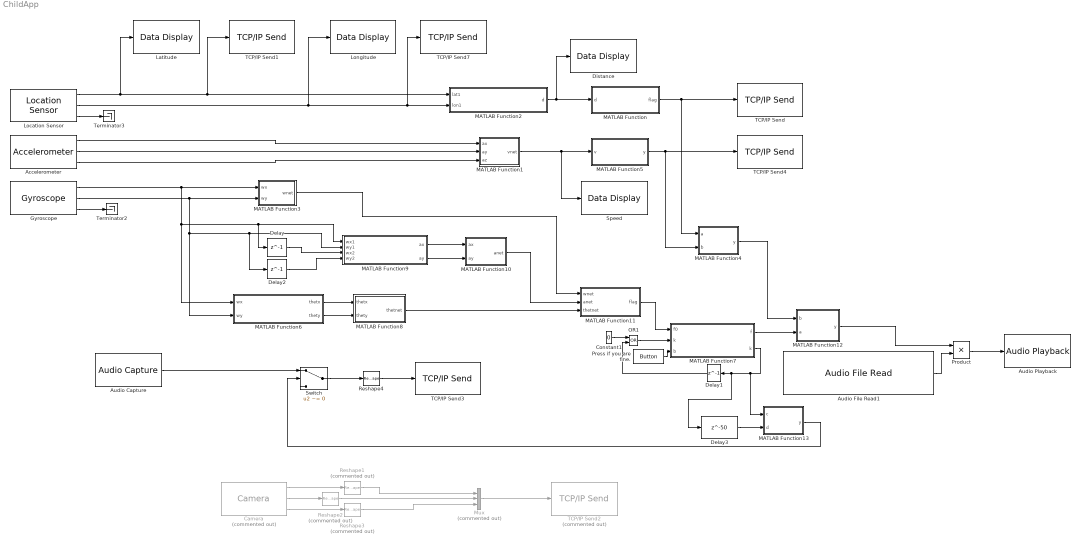
== matlab function ChildApp/MATLAB Function8 ==
function thetnet = mag(thetx,thety)
    thetnet = sqrt(thetx^2+thety^2);
end

== matlab function ChildApp/MATLAB Function9 ==
function [ax,ay] = integrateAcceleration(wx1,wy1,wx2,wy2)
    dt=0.2;
    ax=(wx2-wx1)/dt;
    ay=(wy2-wy1)/dt;
end

== matlab function ChildApp/MATLAB Function12 ==
function y = OR(b,a)
    if(b == 1 || a == 1)
        y = int16(1);
    else
        y = int16(0);
    end
end

== matlab function ChildApp/MATLAB Function13 ==
function y = fcn(c,d)
    if(c == 1)
        if(d == 1)
            y = int16(1);
        else
            y = int16(0);
        end
    else
        y = int16(0);
    end
end

== matlab function ChildApp/MATLAB Function1 ==
function vnet = speed(ax,ay,az)
    dt = 0.2;
    vx = double(ax)*dt;
    vy = double(ay)*dt;
    vz = double(az-9.81)*dt;
    vnet = sqrt(vx^2+vy^2+vz^2);
    if( vnet<= 0.2)
        vnet = 0;
    end
end

== matlab function ChildApp/MATLAB Function2 ==
function d = DistanceFromLatLonInKm(lat1,lon1)
    R = 6371;
    lat2 = 23.2096737;
    lon2 = 72.6836191;
    % Haversine formula
    dlat = deg2rad(lat2-lat1);
    dlon = deg2rad(lon2-lon1); 
    a = sin(dlat/2)^2 + cos(lat1)* cos(lat2) * sin(dlon/2)^2;
    c = 2 * asin(sqrt(complex(a)));  
    d = R * c; % in km
end

== matlab function ChildApp/MATLAB Function ==
function flag = is_out_of_boundary(d)
    if(d > 0.1)
        flag = int16(1);
    else 
        flag = int16(0);
    end
end

== matlab function ChildApp/MATLAB Function10 ==
function anet = mag(ax,ay)
    anet = sqrt(ax^2+ay^2);
end

== matlab function ChildApp/MATLAB Function4 ==
function y = OR(a,b)
    if(a == 1 || b == 1)
        y = int16(1);
    else 
        y = int16(0);
    end
end

== matlab function ChildApp/MATLAB Function5 ==
function y = is_overspeeding(v)
    if(v>5)
        y = int16(1);
    else
        y = int16(0);
    end

end

== matlab function ChildApp/MATLAB Function11 ==
function flag = check(wnet,anet,thetnet)
    flag=int16(0);
    if(wnet > 5)
        if(anet > 30 && thetnet > 0.8)
            flag=int16(1);          
        end
    end
end

== matlab function ChildApp/MATLAB Function3 ==
function wnet = mag(wx,wy)
    wnet = sqrt(wx^2+wy^2);
end

== matlab function ChildApp/MATLAB Function6 ==
function [thetx,thety] = integrateAcceleration(wx,wy)
    dt=0.2;
    thetx =double(wx) * dt;
    thety =double(wy) * dt;
end

== matlab function ChildApp/MATLAB Function7 ==
function [f,k]= check_if_injured_or_not(f0,k,b)
    if(b == false)
        if(k == false)
            if(f0 == 1)
                k = true;
                f = int16(1);
                return;
            end
            f = int16(0);
        elseif(k == true)
            f = int16(1);
        else
            f = int16(0);
        end
    else
        f = int16(0);
        k = false;
    end
end

/*
 * Academic License - for use in teaching, academic research, and meeting
 * course requirements at degree granting institutions only.  Not for
 * government, commercial, or other organizational use.
 *
 * File: ChildApp.c
 *
 * Code generated for Simulink model 'ChildApp'.
 *
 * Model version                  : 1.3
 * Simulink Coder version         : 9.9 (R2023a) 19-Nov-2022
 * C/C++ source code generated on : Sat Sep 30 21:11:03 2023
 *
 * Target selection: ert.tlc
 * Embedded hardware selection: ARM Compatible->ARM 64-bit (LP64)
 * Code generation objectives: Unspecified
 * Validation result: Not run
 */

#include "ChildApp.h"
#include "rtwtypes.h"
#include "ChildApp_types.h"
#include <string.h>
#include <math.h>
#include "rt_nonfinite.h"
#include "ChildApp_private.h"
#include <stddef.h>
#include "rt_defines.h"

/* Block signals (default storage) */
B_ChildApp_T ChildApp_B;

/* Block states (default storage) */
DW_ChildApp_T ChildApp_DW;

/* Real-time model */
static RT_MODEL_ChildApp_T ChildApp_M_;
RT_MODEL_ChildApp_T *const ChildApp_M = &ChildApp_M_;

/* Forward declaration for local functions */
static real_T ChildApp_rt_hypotd_snf(real_T u0, real_T u1);
static void ChildApp_sqrt(creal_T *x);
static real_T ChildApp_rescale(real_T *re, real_T *im);
static void ChildApp_SystemCore_setup_ej(codertarget_internal_androidT_T *obj);
static void ChildApp_SystemCore_setup_ejw(codertarget_internal_androidT_T *obj);
static void ChildApp_SystemCore_setup(codertarget_internal_androidT_T *obj);
static void ChildApp_SystemCore_setup_e(codertarget_internal_androidT_T *obj);
static void ChildApp_SystemCore_setup_ejw1(codertarget_internal_androidT_T *obj);
static void rate_scheduler(void);

/*
 *         This function updates active task flag for each subrate.
 *         The function is called at model base rate, hence the
 *         generated code self-manages all its subrates.
 */
static void rate_scheduler(void)
{
  /* Compute which subrates run during the next base time step.  Subrates
   * are an integer multiple of the base rate counter.  Therefore, the subtask
   * counter is reset when it reaches its limit (zero means run).
   */
  (ChildApp_M->Timing.TaskCounters.TID[1])++;
  if ((ChildApp_M->Timing.TaskCounters.TID[1]) > 1) {/* Sample time: [0.2s, 0.0s] */
    ChildApp_M->Timing.TaskCounters.TID[1] = 0;
  }
}

static real_T ChildApp_rt_hypotd_snf(real_T u0, real_T u1)
{
  real_T y;
  ChildApp_B.a = fabs(u0);
  ChildApp_B.b_c = fabs(u1);
  if (ChildApp_B.a < ChildApp_B.b_c) {
    ChildApp_B.a /= ChildApp_B.b_c;
    y = sqrt(ChildApp_B.a * ChildApp_B.a + 1.0) * ChildApp_B.b_c;
  } else if (ChildApp_B.a > ChildApp_B.b_c) {
    ChildApp_B.b_c /= ChildApp_B.a;
    y = sqrt(ChildApp_B.b_c * ChildApp_B.b_c + 1.0) * ChildApp_B.a;
  } else if (rtIsNaN(ChildApp_B.b_c)) {
    y = (rtNaN);
  } else {
    y = ChildApp_B.a * 1.4142135623730951;
  }

  return y;
}

/* Function for MATLAB Function: '<Root>/MATLAB Function2' */
static void ChildApp_sqrt(creal_T *x)
{
  if (x->im == 0.0) {
    if (x->re < 0.0) {
      ChildApp_B.absxr = 0.0;
      ChildApp_B.absxi = sqrt(-x->re);
    } else {
      ChildApp_B.absxr = sqrt(x->re);
      ChildApp_B.absxi = 0.0;
    }
  } else if (x->re == 0.0) {
    if (x->im < 0.0) {
      ChildApp_B.absxr = sqrt(-x->im / 2.0);
      ChildApp_B.absxi = -ChildApp_B.absxr;
    } else {
      ChildApp_B.absxr = sqrt(x->im / 2.0);
      ChildApp_B.absxi = ChildApp_B.absxr;
    }
  } else if (rtIsNaN(x->re)) {
    ChildApp_B.absxr = (rtNaN);
    ChildApp_B.absxi = (rtNaN);
  } else if (rtIsNaN(x->im)) {
    ChildApp_B.absxr = (rtNaN);
    ChildApp_B.absxi = (rtNaN);
  } else if (rtIsInf(x->im)) {
    ChildApp_B.absxr = fabs(x->im);
    ChildApp_B.absxi = x->im;
  } else if (rtIsInf(x->re)) {
    if (x->re < 0.0) {
      ChildApp_B.absxr = 0.0;
      ChildApp_B.absxi = x->im * -x->re;
    } else {
      ChildApp_B.absxr = x->re;
      ChildApp_B.absxi = 0.0;
    }
  } else {
    ChildApp_B.absxr = fabs(x->re);
    ChildApp_B.absxi = fabs(x->im);
    if ((ChildApp_B.absxr > 4.4942328371557893E+307) || (ChildApp_B.absxi >
         4.4942328371557893E+307)) {
      ChildApp_B.absxr *= 0.5;
      ChildApp_B.absxi = ChildApp_rt_hypotd_snf(ChildApp_B.absxr,
        ChildApp_B.absxi * 0.5);
      if (ChildApp_B.absxi > ChildApp_B.absxr) {
        ChildApp_B.absxr = sqrt(ChildApp_B.absxr / ChildApp_B.absxi + 1.0) *
          sqrt(ChildApp_B.absxi);
      } else {
        ChildApp_B.absxr = sqrt(ChildApp_B.absxi) * 1.4142135623730951;
      }
    } else {
      ChildApp_B.absxr = sqrt((ChildApp_rt_hypotd_snf(ChildApp_B.absxr,
        ChildApp_B.absxi) + ChildApp_B.absxr) * 0.5);
    }

    if (x->re > 0.0) {
      ChildApp_B.absxi = x->im / ChildApp_B.absxr * 0.5;
    } else {
      if (x->im < 0.0) {
        ChildApp_B.absxi = -ChildApp_B.absxr;
      } else {
        ChildApp_B.absxi = ChildApp_B.absxr;
      }

      ChildApp_B.absxr = x->im / ChildApp_B.absxi * 0.5;
    }
  }

  x->re = ChildApp_B.absxr;
  x->im = ChildApp_B.absxi;
}

/* Function for MATLAB Function: '<Root>/MATLAB Function2' */
static real_T ChildApp_rescale(real_T *re, real_T *im)
{
  real_T absim;
  real_T scale;
  scale = fabs(*re);
  absim = fabs(*im);
  if (scale > absim) {
    if (*re < 0.0) {
      *re = -1.0;
    } else {
      *re = 1.0;
    }

    *im /= scale;
  } else if (absim > scale) {
    *re /= absim;
    if (*im < 0.0) {
      *im = -1.0;
    } else {
      *im = 1.0;
    }

    scale = absim;
  } else {
    if (*re < 0.0) {
      *re = -1.0;
    } else {
      *re = 1.0;
    }

    if (*im < 0.0) {
      *im = -1.0;
    } else {
      *im = 1.0;
    }
  }

  return scale;
}

real_T rt_atan2d_snf(real_T u0, real_T u1)
{
  real_T y;
  int32_T tmp;
  int32_T tmp_0;
  if (rtIsNaN(u0) || rtIsNaN(u1)) {
    y = (rtNaN);
  } else if (rtIsInf(u0) && rtIsInf(u1)) {
    if (u0 > 0.0) {
      tmp = 1;
    } else {
      tmp = -1;
    }

    if (u1 > 0.0) {
      tmp_0 = 1;
    } else {
      tmp_0 = -1;
    }

    y = atan2(tmp, tmp_0);
  } else if (u1 == 0.0) {
    if (u0 > 0.0) {
      y = RT_PI / 2.0;
    } else if (u0 < 0.0) {
      y = -(RT_PI / 2.0);
    } else {
      y = 0.0;
    }
  } else {
    y = atan2(u0, u1);
  }

  return y;
}

real_T rt_roundd_snf(real_T u)
{
  real_T y;
  if (fabs(u) < 4.503599627370496E+15) {
    if (u >= 0.5) {
      y = floor(u + 0.5);
    } else if (u > -0.5) {
      y = u * 0.0;
    } else {
      y = ceil(u - 0.5);
    }
  } else {
    y = u;
  }

  return y;
}

static void ChildApp_SystemCore_setup_ej(codertarget_internal_androidT_T *obj)
{
  real_T tmp;
  int32_T i;
  int16_T errorNo;
  uint16_T tmp_0;
  char_T b_str_data[7];
  char_T ipaddr[7];
  static const char_T tmp_1[7] = "Server";
  int32_T str_size_idx_1;
  obj->isInitialized = 1;
  errorNo = obj->errorNo_;
  obj->isServer_ = 1.0;
  for (i = 0; i < 7; i++) {
    ipaddr[i] = tmp_1[i];
  }

  tmp = rt_roundd_snf(obj->isServer_);
  if (tmp < 65536.0) {
    if (tmp >= 0.0) {
      tmp_0 = (uint16_T)tmp;
    } else {
      tmp_0 = 0U;
    }
  } else {
    tmp_0 = MAX_uint16_T;
  }

  TCPStreamSetup(20000, 0, &obj->connStream_, tmp_0, 0.0, &obj->errorNo_,
                 &ipaddr[0]);
  littleEndianCheck(&obj->isLittleEnd_);
  if ((errorNo != obj->errorNo_) && (obj->errorNo_ > 0) && (obj->errorNo_ < 10))
  {
    str_size_idx_1 = 1;
    ipaddr[0] = '\x00';
    if (obj->errorNo_ == 4) {
      UPDATE_TCP_LOGI(obj->errorNo_, 3.0, 0, 25000);
    } else {
      if (obj->errorNo_ == 5) {
        str_size_idx_1 = 7;
        for (i = 0; i < 7; i++) {
          ipaddr[i] = tmp_1[i];
        }
      }

      memcpy(&b_str_data[0], &ipaddr[0], (uint32_T)str_size_idx_1 * sizeof
             (char_T));
      UPDATE_TCP_LOGS(obj->errorNo_, 3.0, 0, &b_str_data[0]);
    }
  }
}

static void ChildApp_SystemCore_setup_ejw(codertarget_internal_androidT_T *obj)
{
  real_T tmp;
  int32_T i;
  int16_T errorNo;
  uint16_T tmp_0;
  char_T b_str_data[7];
  char_T ipaddr[7];
  static const char_T tmp_1[7] = "Server";
  int32_T str_size_idx_1;
  obj->isInitialized = 1;
  errorNo = obj->errorNo_;
  obj->isServer_ = 1.0;
  for (i = 0; i < 7; i++) {
    ipaddr[i] = tmp_1[i];
  }

  tmp = rt_roundd_snf(obj->isServer_);
  if (tmp < 65536.0) {
    if (tmp >= 0.0) {
      tmp_0 = (uint16_T)tmp;
    } else {
      tmp_0 = 0U;
    }
  } else {
    tmp_0 = MAX_uint16_T;
  }

  TCPStreamSetup(60000, 0, &obj->connStream_, tmp_0, 0.0, &obj->errorNo_,
                 &ipaddr[0]);
  littleEndianCheck(&obj->isLittleEnd_);
  if ((errorNo != obj->errorNo_) && (obj->errorNo_ > 0) && (obj->errorNo_ < 10))
  {
    str_size_idx_1 = 1;
    ipaddr[0] = '\x00';
    if (obj->errorNo_ == 4) {
      UPDATE_TCP_LOGI(obj->errorNo_, 4.0, 0, 25000);
    } else {
      if (obj->errorNo_ == 5) {
        str_size_idx_1 = 7;
        for (i = 0; i < 7; i++) {
          ipaddr[i] = tmp_1[i];
        }
      }

      memcpy(&b_str_data[0], &ipaddr[0], (uint32_T)str_size_idx_1 * sizeof
             (char_T));
      UPDATE_TCP_LOGS(obj->errorNo_, 4.0, 0, &b_str_data[0]);
    }
  }
}

static void ChildApp_SystemCore_setup(codertarget_internal_androidT_T *obj)
{
  real_T tmp;
  int32_T i;
  int16_T errorNo;
  uint16_T tmp_0;
  char_T b_str_data[7];
  char_T ipaddr[7];
  static const char_T tmp_1[7] = "Server";
  int32_T str_size_idx_1;
  obj->isInitialized = 1;
  errorNo = obj->errorNo_;
  obj->isServer_ = 1.0;
  for (i = 0; i < 7; i++) {
    ipaddr[i] = tmp_1[i];
  }

  tmp = rt_roundd_snf(obj->isServer_);
  if (tmp < 65536.0) {
    if (tmp >= 0.0) {
      tmp_0 = (uint16_T)tmp;
    } else {
      tmp_0 = 0U;
    }
  } else {
    tmp_0 = MAX_uint16_T;
  }

  TCPStreamSetup(25000, 0, &obj->connStream_, tmp_0, 0.0, &obj->errorNo_,
                 &ipaddr[0]);
  littleEndianCheck(&obj->isLittleEnd_);
  if ((errorNo != obj->errorNo_) && (obj->errorNo_ > 0) && (obj->errorNo_ < 10))
  {
    str_size_idx_1 = 1;
    ipaddr[0] = '\x00';
    if (obj->errorNo_ == 4) {
      UPDATE_TCP_LOGI(obj->errorNo_, 1.0, 0, 25000);
    } else {
      if (obj->errorNo_ == 5) {
        str_size_idx_1 = 7;
        for (i = 0; i < 7; i++) {
          ipaddr[i] = tmp_1[i];
        }
      }

      memcpy(&b_str_data[0], &ipaddr[0], (uint32_T)str_size_idx_1 * sizeof
             (char_T));
      UPDATE_TCP_LOGS(obj->errorNo_, 1.0, 0, &b_str_data[0]);
    }
  }
}

static void ChildApp_SystemCore_setup_e(codertarget_internal_androidT_T *obj)
{
  real_T tmp;
  int32_T i;
  int16_T errorNo;
  uint16_T tmp_0;
  char_T b_str_data[7];
  char_T ipaddr[7];
  static const char_T tmp_1[7] = "Server";
  int32_T str_size_idx_1;
  obj->isInitialized = 1;
  errorNo = obj->errorNo_;
  obj->isServer_ = 1.0;
  for (i = 0; i < 7; i++) {
    ipaddr[i] = tmp_1[i];
  }

  tmp = rt_roundd_snf(obj->isServer_);
  if (tmp < 65536.0) {
    if (tmp >= 0.0) {
      tmp_0 = (uint16_T)tmp;
    } else {
      tmp_0 = 0U;
    }
  } else {
    tmp_0 = MAX_uint16_T;
  }

  TCPStreamSetup(50000, 0, &obj->connStream_, tmp_0, 0.0, &obj->errorNo_,
                 &ipaddr[0]);
  littleEndianCheck(&obj->isLittleEnd_);
  if ((errorNo != obj->errorNo_) && (obj->errorNo_ > 0) && (obj->errorNo_ < 10))
  {
    str_size_idx_1 = 1;
    ipaddr[0] = '\x00';
    if (obj->errorNo_ == 4) {
      UPDATE_TCP_LOGI(obj->errorNo_, 2.0, 0, 25000);
    } else {
      if (obj->errorNo_ == 5) {
        str_size_idx_1 = 7;
        for (i = 0; i < 7; i++) {
          ipaddr[i] = tmp_1[i];
        }
      }

      memcpy(&b_str_data[0], &ipaddr[0], (uint32_T)str_size_idx_1 * sizeof
             (char_T));
      UPDATE_TCP_LOGS(obj->errorNo_, 2.0, 0, &b_str_data[0]);
    }
  }
}

static void ChildApp_SystemCore_setup_ejw1(codertarget_internal_androidT_T *obj)
{
  real_T tmp;
  int32_T i;
  int16_T errorNo;
  uint16_T tmp_0;
  char_T b_str_data[7];
  char_T ipaddr[7];
  static const char_T tmp_1[7] = "Server";
  int32_T str_size_idx_1;
  obj->isInitialized = 1;
  errorNo = obj->errorNo_;
  obj->isServer_ = 1.0;
  for (i = 0; i < 7; i++) {
    ipaddr[i] = tmp_1[i];
  }

  tmp = rt_roundd_snf(obj->isServer_);
  if (tmp < 65536.0) {
    if (tmp >= 0.0) {
      tmp_0 = (uint16_T)tmp;
    } else {
      tmp_0 = 0U;
    }
  } else {
    tmp_0 = MAX_uint16_T;
  }

  TCPStreamSetup(15000, 0, &obj->connStream_, tmp_0, 0.0, &obj->errorNo_,
                 &ipaddr[0]);
  littleEndianCheck(&obj->isLittleEnd_);
  if ((errorNo != obj->errorNo_) && (obj->errorNo_ > 0) && (obj->errorNo_ < 10))
  {
    str_size_idx_1 = 1;
    ipaddr[0] = '\x00';
    if (obj->errorNo_ == 4) {
      UPDATE_TCP_LOGI(obj->errorNo_, 5.0, 0, 25000);
    } else {
      if (obj->errorNo_ == 5) {
        str_size_idx_1 = 7;
        for (i = 0; i < 7; i++) {
          ipaddr[i] = tmp_1[i];
        }
      }

      memcpy(&b_str_data[0], &ipaddr[0], (uint32_T)str_size_idx_1 * sizeof
             (char_T));
      UPDATE_TCP_LOGS(obj->errorNo_, 5.0, 0, &b_str_data[0]);
    }
  }
}

/* Model step function */
void ChildApp_step(void)
{
  int32_T b_k;
  int32_T outData_tmp;
  real32_T rtb_MATLABSystem_o1;
  real32_T rtb_MATLABSystem_o2;
  real32_T rtb_ax;
  real32_T rtb_ay;
  int16_T rtb_f;
  int16_T rtb_flag;
  int16_T y_0;
  uint16_T tmp;
  char_T b_str_data[7];
  char_T b_FormatStringTerminated[5];
  char_T b_FormatStringTerminated_0[5];
  uint8_T b_x[2];
  uint8_T y[2];
  uint8_T xtmp;
  boolean_T tmp_0;
  boolean_T xneg;
  static const char_T tmp_1[7] = "Server";

  /* MATLABSystem: '<Root>/Audio File Read1' */
  memset(&ChildApp_B.refData[0], 0, 8820U * sizeof(int16_T));
  b_k = ChildApp_DW.obj.Idx;
  if (ChildApp_DW.obj.Idx < 0) {
    b_k = 0;
  }

  READ_AUDIOFILE_DATA(4410U, 2U, &ChildApp_B.refData[0], (uint32_T)b_k);

  /* MATLABSystem: '<S7>/Location Sensor' */
  ChildApp_B.out[0] = 0.0;
  ChildApp_B.out[1] = 0.0;
  ChildApp_B.out[2] = 0.0;
  GET_LOCATION_DATA(&ChildApp_B.out[0], &ChildApp_B.out[1], &ChildApp_B.out[2]);

  /* MATLAB Function: '<Root>/MATLAB Function2' incorporates:
   *  MATLABSystem: '<S7>/Location Sensor'
   */
  ChildApp_B.b_ci = sin((23.2096737 - ChildApp_B.out[0]) * 0.017453292519943295 /
                        2.0);
  ChildApp_B.t = sin((72.6836191 - ChildApp_B.out[1]) * 0.017453292519943295 /
                     2.0);
  ChildApp_B.b_m.re = cos(ChildApp_B.out[0]) * -0.34503042633900188 *
    (ChildApp_B.t * ChildApp_B.t) + ChildApp_B.b_ci * ChildApp_B.b_ci;
  ChildApp_B.b_m.im = 0.0;
  ChildApp_sqrt(&ChildApp_B.b_m);
  if ((ChildApp_B.b_m.im == 0.0) && (!(fabs(ChildApp_B.b_m.re) > 1.0))) {
    ChildApp_B.b_m.re = asin(ChildApp_B.b_m.re);
    ChildApp_B.b_m.im = 0.0;
  } else {
    ChildApp_B.v.re = ChildApp_B.b_m.re + 1.0;
    ChildApp_B.v.im = ChildApp_B.b_m.im;
    ChildApp_sqrt(&ChildApp_B.v);
    ChildApp_B.u.re = 1.0 - ChildApp_B.b_m.re;
    ChildApp_B.u.im = 0.0 - ChildApp_B.b_m.im;
    ChildApp_sqrt(&ChildApp_B.u);
    if ((ChildApp_B.u.im == 0.0) && (ChildApp_B.v.im == 0.0)) {
      ChildApp_B.tmp = ChildApp_B.u.re * ChildApp_B.v.re;
    } else {
      ChildApp_B.t1 = ChildApp_B.u.re * ChildApp_B.v.re;
      ChildApp_B.t2 = ChildApp_B.u.im * ChildApp_B.v.im;
      ChildApp_B.tmp = ChildApp_B.t1 - ChildApp_B.t2;
      xneg = rtIsNaN(ChildApp_B.tmp);
      tmp_0 = rtIsInf(ChildApp_B.tmp);
      if ((tmp_0 || xneg) && (!rtIsNaN(ChildApp_B.u.re)) && (!rtIsNaN
           (ChildApp_B.u.im)) && (!rtIsNaN(ChildApp_B.v.re)) && (!rtIsNaN
           (ChildApp_B.v.im))) {
        ChildApp_B.b_ci = ChildApp_B.u.re;
        ChildApp_B.t = ChildApp_B.u.im;
        ChildApp_B.scaleA = ChildApp_rescale(&ChildApp_B.b_ci, &ChildApp_B.t);
        ChildApp_B.sbr = ChildApp_B.v.re;
        ChildApp_B.sbi = ChildApp_B.v.im;
        ChildApp_B.scaleB = ChildApp_rescale(&ChildApp_B.sbr, &ChildApp_B.sbi);
        if (xneg || (tmp_0 && ((!rtIsInf(ChildApp_B.scaleA)) && (!rtIsNaN
               (ChildApp_B.scaleA)) && ((!rtIsInf(ChildApp_B.scaleB)) &&
               (!rtIsNaN(ChildApp_B.scaleB)))))) {
          ChildApp_B.tmp = ChildApp_B.b_ci * ChildApp_B.sbr - ChildApp_B.t *
            ChildApp_B.sbi;
          if (ChildApp_B.tmp != 0.0) {
            ChildApp_B.tmp = ChildApp_B.tmp * ChildApp_B.scaleA *
              ChildApp_B.scaleB;
          } else if ((rtIsInf(ChildApp_B.scaleA) && ((ChildApp_B.v.re == 0.0) ||
            (ChildApp_B.v.im == 0.0))) || (rtIsInf(ChildApp_B.scaleB) &&
                      ((ChildApp_B.u.re == 0.0) || (ChildApp_B.u.im == 0.0)))) {
            if (rtIsNaN(ChildApp_B.t1)) {
              ChildApp_B.t1 = 0.0;
            }

            if (rtIsNaN(ChildApp_B.t2)) {
              ChildApp_B.t2 = 0.0;
            }

            ChildApp_B.tmp = ChildApp_B.t1 - ChildApp_B.t2;
          }
        }
      }
    }

    if ((-ChildApp_B.u.im == 0.0) && (ChildApp_B.v.im == 0.0)) {
      ChildApp_B.b_ci = 0.0;
    } else {
      ChildApp_B.t2 = ChildApp_B.u.re * ChildApp_B.v.im;
      ChildApp_B.t4 = -ChildApp_B.u.im * ChildApp_B.v.re;
      ChildApp_B.b_ci = ChildApp_B.t2 + ChildApp_B.t4;
      xneg = rtIsNaN(ChildApp_B.b_ci);
      tmp_0 = rtIsInf(ChildApp_B.b_ci);
      if ((tmp_0 || xneg) && (!rtIsNaN(ChildApp_B.u.re)) && (!rtIsNaN
           (-ChildApp_B.u.im)) && (!rtIsNaN(ChildApp_B.v.re)) && (!rtIsNaN
           (ChildApp_B.v.im))) {
        ChildApp_B.t = ChildApp_B.u.re;
        ChildApp_B.scaleA = -ChildApp_B.u.im;
        ChildApp_B.sbr = ChildApp_rescale(&ChildApp_B.t, &ChildApp_B.scaleA);
        ChildApp_B.sbi = ChildApp_B.v.re;
        ChildApp_B.scaleB = ChildApp_B.v.im;
        ChildApp_B.t1 = ChildApp_rescale(&ChildApp_B.sbi, &ChildApp_B.scaleB);
        if (xneg || (tmp_0 && ((!rtIsInf(ChildApp_B.sbr)) && (!rtIsNaN
               (ChildApp_B.sbr)) && ((!rtIsInf(ChildApp_B.t1)) && (!rtIsNaN
                (ChildApp_B.t1)))))) {
          ChildApp_B.b_ci = ChildApp_B.t * ChildApp_B.scaleB + ChildApp_B.scaleA
            * ChildApp_B.sbi;
          if (ChildApp_B.b_ci != 0.0) {
            ChildApp_B.b_ci = ChildApp_B.b_ci * ChildApp_B.sbr * ChildApp_B.t1;
          } else if ((rtIsInf(ChildApp_B.sbr) && ((ChildApp_B.v.re == 0.0) ||
                       (ChildApp_B.v.im == 0.0))) || (rtIsInf(ChildApp_B.t1) &&
                      ((ChildApp_B.u.re == 0.0) || (-ChildApp_B.u.im == 0.0))))
          {
            if (rtIsNaN(ChildApp_B.t2)) {
              ChildApp_B.t2 = 0.0;
            }

            if (rtIsNaN(ChildApp_B.t4)) {
              ChildApp_B.t4 = 0.0;
            }

            ChildApp_B.b_ci = ChildApp_B.t2 + ChildApp_B.t4;
          }
        }
      }
    }

    xneg = (ChildApp_B.b_ci < 0.0);
    if (xneg) {
      ChildApp_B.b_ci = -ChildApp_B.b_ci;
    }

    if (ChildApp_B.b_ci >= 2.68435456E+8) {
      ChildApp_B.b_ci = log(ChildApp_B.b_ci) + 0.69314718055994529;
    } else if (ChildApp_B.b_ci > 2.0) {
      ChildApp_B.b_ci = log(1.0 / (sqrt(ChildApp_B.b_ci * ChildApp_B.b_ci + 1.0)
        + ChildApp_B.b_ci) + 2.0 * ChildApp_B.b_ci);
    } else {
      ChildApp_B.t = ChildApp_B.b_ci * ChildApp_B.b_ci;
      ChildApp_B.b_ci += ChildApp_B.t / (sqrt(ChildApp_B.t + 1.0) + 1.0);
      ChildApp_B.t = fabs(ChildApp_B.b_ci);
      if ((ChildApp_B.t > 4.503599627370496E+15) || (rtIsInf(ChildApp_B.b_ci) ||
           rtIsNaN(ChildApp_B.b_ci))) {
        ChildApp_B.b_ci = log(ChildApp_B.b_ci + 1.0);
      } else if (!(ChildApp_B.t < 2.2204460492503131E-16)) {
        ChildApp_B.b_ci = ChildApp_B.b_ci / ((ChildApp_B.b_ci + 1.0) - 1.0) *
          log(ChildApp_B.b_ci + 1.0);
      }
    }

    if (xneg) {
      ChildApp_B.b_ci = -ChildApp_B.b_ci;
    }

    ChildApp_B.b_m.re = rt_atan2d_snf(ChildApp_B.b_m.re, ChildApp_B.tmp);
    ChildApp_B.b_m.im = ChildApp_B.b_ci;
  }

  ChildApp_B.tmp = 2.0 * ChildApp_B.b_m.re * 6371.0;

  /* MATLAB Function: '<Root>/MATLAB Function' */
  rtb_flag = (int16_T)(ChildApp_B.tmp > 0.1);
  if (ChildApp_M->Timing.TaskCounters.TID[1] == 0) {
    /* MATLABSystem: '<S1>/Accelerometer' */
    ChildApp_B.out_c[0] = 0.0F;
    ChildApp_B.out_c[1] = 0.0F;
    ChildApp_B.out_c[2] = 0.0F;
    GET_ACCELEROMETER_DATA(&ChildApp_B.out_c[0], &ChildApp_B.out_c[1],
      &ChildApp_B.out_c[2]);

    /* MATLAB Function: '<Root>/MATLAB Function1' incorporates:
     *  MATLABSystem: '<S1>/Accelerometer'
     */
    ChildApp_B.b_ci = ChildApp_B.out_c[0] * 0.2;
    ChildApp_B.t = ChildApp_B.out_c[1] * 0.2;
    ChildApp_B.vnet = (ChildApp_B.out_c[2] - 9.81F) * 0.2;
    ChildApp_B.vnet = sqrt((ChildApp_B.b_ci * ChildApp_B.b_ci + ChildApp_B.t *
      ChildApp_B.t) + ChildApp_B.vnet * ChildApp_B.vnet);
    if (ChildApp_B.vnet <= 0.2) {
      ChildApp_B.vnet = 0.0;
    }

    /* End of MATLAB Function: '<Root>/MATLAB Function1' */

    /* MATLAB Function: '<Root>/MATLAB Function5' */
    ChildApp_B.y = (int16_T)(ChildApp_B.vnet > 5.0);

    /* MATLABSystem: '<S5>/MATLAB System' */
    ChildApp_B.out_c[0] = 0.0F;
    ChildApp_B.out_c[1] = 0.0F;
    ChildApp_B.out_c[2] = 0.0F;
    GET_GYROSCOPE_DATA(&ChildApp_B.out_c[0], &ChildApp_B.out_c[1],
                       &ChildApp_B.out_c[2]);
    rtb_MATLABSystem_o1 = ChildApp_B.out_c[0];
    rtb_MATLABSystem_o2 = ChildApp_B.out_c[1];

    /* MATLAB Function: '<Root>/MATLAB Function9' incorporates:
     *  Delay: '<Root>/Delay'
     *  Delay: '<Root>/Delay2'
     *  MATLABSystem: '<S5>/MATLAB System'
     */
    rtb_ax = (ChildApp_DW.Delay_DSTATE - ChildApp_B.out_c[0]) / 0.2F;
    rtb_ay = (ChildApp_DW.Delay2_DSTATE - ChildApp_B.out_c[1]) / 0.2F;

    /* MATLAB Function: '<Root>/MATLAB Function6' incorporates:
     *  MATLABSystem: '<S5>/MATLAB System'
     */
    ChildApp_B.b_ci = ChildApp_B.out_c[0] * 0.2;
    ChildApp_B.t = ChildApp_B.out_c[1] * 0.2;

    /* MATLAB Function: '<Root>/MATLAB Function11' incorporates:
     *  MATLAB Function: '<Root>/MATLAB Function10'
     *  MATLAB Function: '<Root>/MATLAB Function3'
     *  MATLAB Function: '<Root>/MATLAB Function8'
     *  MATLABSystem: '<S5>/MATLAB System'
     */
    ChildApp_B.flag = 0;
    if (((real32_T)sqrt(ChildApp_B.out_c[0] * ChildApp_B.out_c[0] +
                        ChildApp_B.out_c[1] * ChildApp_B.out_c[1]) > 5.0F) &&
        ((real32_T)sqrt(rtb_ax * rtb_ax + rtb_ay * rtb_ay) > 30.0F) && (sqrt
         (ChildApp_B.b_ci * ChildApp_B.b_ci + ChildApp_B.t * ChildApp_B.t) > 0.8))
    {
      ChildApp_B.flag = 1;
    }

    /* End of MATLAB Function: '<Root>/MATLAB Function11' */
  }

  /* Logic: '<Root>/OR1' incorporates:
   *  Constant: '<Root>/Constant1'
   *  Delay: '<Root>/Delay1'
   */
  ChildApp_DW.Delay1_DSTATE = ((ChildApp_P.Constant1_Value != 0.0) ||
    ChildApp_DW.Delay1_DSTATE);

  /* MATLABSystem: '<S23>/Button' */
  xneg = BUTTON_GETSTATE(1.0);

  /* MATLAB Function: '<Root>/MATLAB Function7' incorporates:
   *  MATLABSystem: '<S23>/Button'
   */
  if (!xneg) {
    if (!ChildApp_DW.Delay1_DSTATE) {
      if (ChildApp_B.flag == 1) {
        /* Logic: '<Root>/OR1' */
        ChildApp_DW.Delay1_DSTATE = true;
        rtb_f = 1;
      } else {
        rtb_f = 0;
      }
    } else {
      rtb_f = 1;
    }
  } else {
    rtb_f = 0;

    /* Logic: '<Root>/OR1' */
    ChildApp_DW.Delay1_DSTATE = false;
  }

  /* MATLAB Function: '<Root>/MATLAB Function12' incorporates:
   *  MATLAB Function: '<Root>/MATLAB Function4'
   */
  rtb_f = (int16_T)((rtb_flag == 1) || (ChildApp_B.y == 1) || (rtb_f == 1));

  /* MATLABSystem: '<S3>/Audio Playback' incorporates:
   *  MATLABSystem: '<Root>/Audio File Read1'
   *  Product: '<Root>/Product'
   */
  if (ChildApp_DW.obj_p.SampleFreq != ChildApp_P.AudioPlayback_SampleFreq) {
    ChildApp_DW.obj_p.SampleFreq = ChildApp_P.AudioPlayback_SampleFreq;
  }

  for (b_k = 0; b_k < 4410; b_k++) {
    outData_tmp = b_k << 1;
    ChildApp_B.outData[outData_tmp] = (int16_T)(rtb_f * ChildApp_B.refData[b_k]);
    ChildApp_B.outData[outData_tmp + 1] = (int16_T)(ChildApp_B.refData[b_k +
      4410] * rtb_f);
  }

  AUDIO_PLAYBACK(&ChildApp_B.outData[0], ChildApp_DW.obj_p.FrameSize);

  /* End of MATLABSystem: '<S3>/Audio Playback' */

  /* MATLABSystem: '<S2>/MATLAB System' */
  AUDIO_CAPTURE(&ChildApp_B.refData[0], 4410);

  /* MATLAB Function: '<Root>/MATLAB Function13' incorporates:
   *  Delay: '<Root>/Delay3'
   *  MATLAB Function: '<Root>/MATLAB Function7'
   */
  if (ChildApp_DW.Delay1_DSTATE) {
    rtb_f = ChildApp_DW.Delay3_DSTATE[0];
  } else {
    rtb_f = 0;
  }

  /* Switch: '<Root>/Switch' incorporates:
   *  MATLAB Function: '<Root>/MATLAB Function13'
   *  MATLABSystem: '<S2>/MATLAB System'
   */
  xneg = (rtb_f != 0);
  for (b_k = 0; b_k < 2; b_k++) {
    for (outData_tmp = 0; outData_tmp < 4410; outData_tmp++) {
      if (xneg) {
        ChildApp_B.outData[outData_tmp + 4410 * b_k] = ChildApp_B.refData
          [(outData_tmp << 1) + b_k];
      } else {
        ChildApp_B.outData[outData_tmp + 4410 * b_k] = 0;
      }
    }
  }

  /* End of Switch: '<Root>/Switch' */

  /* MATLABSystem: '<Root>/TCP//IP Send3' */
  rtb_f = ChildApp_DW.obj_pv.errorNo_;
  if (ChildApp_DW.obj_pv.isLittleEnd_ == 1) {
    for (b_k = 0; b_k < 8820; b_k++) {
      memcpy((void *)&y[0], (void *)&ChildApp_B.outData[b_k], (uint32_T)((size_t)
              2 * sizeof(uint8_T)));
      b_x[0] = y[1];
      b_x[1] = y[0];
      memcpy((void *)&y_0, (void *)&b_x[0], (uint32_T)((size_t)1 * sizeof
              (int16_T)));
      ChildApp_B.outData[b_k] = y_0;
    }
  }

  ChildApp_B.b_ci = rt_roundd_snf(ChildApp_DW.obj_pv.isServer_);
  if (ChildApp_B.b_ci < 65536.0) {
    if (ChildApp_B.b_ci >= 0.0) {
      tmp = (uint16_T)ChildApp_B.b_ci;
    } else {
      tmp = 0U;
    }
  } else {
    tmp = MAX_uint16_T;
  }

  TCPStreamStepSend(&ChildApp_B.outData[0], 17640U,
                    ChildApp_DW.obj_pv.connStream_, tmp,
                    &ChildApp_DW.obj_pv.errorNo_);
  if ((rtb_f != ChildApp_DW.obj_pv.errorNo_) && (ChildApp_DW.obj_pv.errorNo_ > 0)
      && (ChildApp_DW.obj_pv.errorNo_ < 10)) {
    outData_tmp = 1;
    ChildApp_B.str_data[0] = '\x00';
    if (ChildApp_DW.obj_pv.errorNo_ == 4) {
      UPDATE_TCP_LOGI(ChildApp_DW.obj_pv.errorNo_, 3.0, 0, 25000);
    } else {
      if (ChildApp_DW.obj_pv.errorNo_ == 5) {
        outData_tmp = 7;
        for (b_k = 0; b_k < 7; b_k++) {
          ChildApp_B.str_data[b_k] = tmp_1[b_k];
        }
      }

      memcpy(&b_str_data[0], &ChildApp_B.str_data[0], (uint32_T)outData_tmp *
             sizeof(char_T));
      UPDATE_TCP_LOGS(ChildApp_DW.obj_pv.errorNo_, 3.0, 0, &b_str_data[0]);
    }
  }

  /* End of MATLABSystem: '<Root>/TCP//IP Send3' */
  if (ChildApp_M->Timing.TaskCounters.TID[1] == 0) {
    /* MATLABSystem: '<Root>/TCP//IP Send4' */
    rtb_f = ChildApp_DW.obj_e.errorNo_;
    y_0 = ChildApp_B.y;
    if (ChildApp_DW.obj_e.isLittleEnd_ == 1) {
      memcpy((void *)&y[0], (void *)&ChildApp_B.y, (uint32_T)((size_t)2 * sizeof
              (uint8_T)));
      b_x[0] = y[1];
      b_x[1] = y[0];
      memcpy((void *)&y_0, (void *)&b_x[0], (uint32_T)((size_t)1 * sizeof
              (int16_T)));
    }

    ChildApp_B.b_ci = rt_roundd_snf(ChildApp_DW.obj_e.isServer_);
    if (ChildApp_B.b_ci < 65536.0) {
      if (ChildApp_B.b_ci >= 0.0) {
        tmp = (uint16_T)ChildApp_B.b_ci;
      } else {
        tmp = 0U;
      }
    } else {
      tmp = MAX_uint16_T;
    }

    TCPStreamStepSend(&y_0, 2U, ChildApp_DW.obj_e.connStream_, tmp,
                      &ChildApp_DW.obj_e.errorNo_);
    if ((rtb_f != ChildApp_DW.obj_e.errorNo_) && (ChildApp_DW.obj_e.errorNo_ > 0)
        && (ChildApp_DW.obj_e.errorNo_ < 10)) {
      outData_tmp = 1;
      ChildApp_B.str_data[0] = '\x00';
      if (ChildApp_DW.obj_e.errorNo_ == 4) {
        UPDATE_TCP_LOGI(ChildApp_DW.obj_e.errorNo_, 4.0, 0, 25000);
      } else {
        if (ChildApp_DW.obj_e.errorNo_ == 5) {
          outData_tmp = 7;
          for (b_k = 0; b_k < 7; b_k++) {
            ChildApp_B.str_data[b_k] = tmp_1[b_k];
          }
        }

        memcpy(&b_str_data[0], &ChildApp_B.str_data[0], (uint32_T)outData_tmp *
               sizeof(char_T));
        UPDATE_TCP_LOGS(ChildApp_DW.obj_e.errorNo_, 4.0, 0, &b_str_data[0]);
      }
    }

    /* End of MATLABSystem: '<Root>/TCP//IP Send4' */

    /* MATLABSystem: '<S24>/DataDisplay' */
    b_FormatStringTerminated[0] = '%';
    b_FormatStringTerminated[1] = '.';
    b_FormatStringTerminated[2] = '6';
    b_FormatStringTerminated[3] = 'f';
    b_FormatStringTerminated[4] = '\x00';
    PUT_DATADISPLAY_DATA(&ChildApp_B.vnet, 4.0, 9, 1, &b_FormatStringTerminated
                         [0]);
  }

  /* MATLABSystem: '<Root>/TCP//IP Send' */
  rtb_f = ChildApp_DW.obj_pe.errorNo_;
  if (ChildApp_DW.obj_pe.isLittleEnd_ == 1) {
    memcpy((void *)&y[0], (void *)&rtb_flag, (uint32_T)((size_t)2 * sizeof
            (uint8_T)));
    b_x[0] = y[1];
    b_x[1] = y[0];
    memcpy((void *)&rtb_flag, (void *)&b_x[0], (uint32_T)((size_t)1 * sizeof
            (int16_T)));
  }

  ChildApp_B.b_ci = rt_roundd_snf(ChildApp_DW.obj_pe.isServer_);
  if (ChildApp_B.b_ci < 65536.0) {
    if (ChildApp_B.b_ci >= 0.0) {
      tmp = (uint16_T)ChildApp_B.b_ci;
    } else {
      tmp = 0U;
    }
  } else {
    tmp = MAX_uint16_T;
  }

  TCPStreamStepSend(&rtb_flag, 2U, ChildApp_DW.obj_pe.connStream_, tmp,
                    &ChildApp_DW.obj_pe.errorNo_);
  if ((rtb_f != ChildApp_DW.obj_pe.errorNo_) && (ChildApp_DW.obj_pe.errorNo_ > 0)
      && (ChildApp_DW.obj_pe.errorNo_ < 10)) {
    outData_tmp = 1;
    ChildApp_B.str_data[0] = '\x00';
    if (ChildApp_DW.obj_pe.errorNo_ == 4) {
      UPDATE_TCP_LOGI(ChildApp_DW.obj_pe.errorNo_, 1.0, 0, 25000);
    } else {
      if (ChildApp_DW.obj_pe.errorNo_ == 5) {
        outData_tmp = 7;
        for (b_k = 0; b_k < 7; b_k++) {
          ChildApp_B.str_data[b_k] = tmp_1[b_k];
        }
      }

      memcpy(&b_str_data[0], &ChildApp_B.str_data[0], (uint32_T)outData_tmp *
             sizeof(char_T));
      UPDATE_TCP_LOGS(ChildApp_DW.obj_pe.errorNo_, 1.0, 0, &b_str_data[0]);
    }
  }

  /* End of MATLABSystem: '<Root>/TCP//IP Send' */

  /* MATLABSystem: '<S4>/DataDisplay' incorporates:
   *  MATLAB Function: '<Root>/MATLAB Function2'
   *  MATLABSystem: '<S6>/DataDisplay'
   *  MATLABSystem: '<S8>/DataDisplay'
   */
  ChildApp_B.b_m.re = ChildApp_B.tmp;
  ChildApp_B.b_m.im = 2.0 * ChildApp_B.b_m.im * 6371.0;
  b_FormatStringTerminated[0] = '%';
  b_FormatStringTerminated[1] = '.';
  b_FormatStringTerminated[2] = '6';
  b_FormatStringTerminated[3] = 'f';
  b_FormatStringTerminated[4] = '\x00';
  for (b_k = 0; b_k < 5; b_k++) {
    b_FormatStringTerminated_0[b_k] = b_FormatStringTerminated[b_k];
  }

  PUT_DATADISPLAY_DATA(&ChildApp_B.b_m, 1.0, 9, 1, &b_FormatStringTerminated_0[0]);

  /* End of MATLABSystem: '<S4>/DataDisplay' */

  /* MATLABSystem: '<S6>/DataDisplay' incorporates:
   *  MATLABSystem: '<S7>/Location Sensor'
   */
  for (b_k = 0; b_k < 5; b_k++) {
    b_FormatStringTerminated_0[b_k] = b_FormatStringTerminated[b_k];
  }

  PUT_DATADISPLAY_DATA(&ChildApp_B.out[0], 2.0, 9, 1,
                       &b_FormatStringTerminated_0[0]);

  /* MATLABSystem: '<S8>/DataDisplay' incorporates:
   *  MATLABSystem: '<S7>/Location Sensor'
   */
  PUT_DATADISPLAY_DATA(&ChildApp_B.out[1], 3.0, 9, 1, &b_FormatStringTerminated
                       [0]);

  /* MATLABSystem: '<Root>/TCP//IP Send1' incorporates:
   *  MATLABSystem: '<S7>/Location Sensor'
   */
  rtb_f = ChildApp_DW.obj_m.errorNo_;
  ChildApp_B.vnet = ChildApp_B.out[0];
  if (ChildApp_DW.obj_m.isLittleEnd_ == 1) {
    memcpy((void *)&ChildApp_B.b_x[0], (void *)&ChildApp_B.out[0], (uint32_T)
           ((size_t)8 * sizeof(uint8_T)));
    xtmp = ChildApp_B.b_x[0];
    ChildApp_B.b_x[0] = ChildApp_B.b_x[7];
    ChildApp_B.b_x[7] = xtmp;
    xtmp = ChildApp_B.b_x[1];
    ChildApp_B.b_x[1] = ChildApp_B.b_x[6];
    ChildApp_B.b_x[6] = xtmp;
    xtmp = ChildApp_B.b_x[2];
    ChildApp_B.b_x[2] = ChildApp_B.b_x[5];
    ChildApp_B.b_x[5] = xtmp;
    xtmp = ChildApp_B.b_x[3];
    ChildApp_B.b_x[3] = ChildApp_B.b_x[4];
    ChildApp_B.b_x[4] = xtmp;
    memcpy((void *)&ChildApp_B.vnet, (void *)&ChildApp_B.b_x[0], (uint32_T)
           ((size_t)1 * sizeof(real_T)));
  }

  ChildApp_B.b_ci = rt_roundd_snf(ChildApp_DW.obj_m.isServer_);
  if (ChildApp_B.b_ci < 65536.0) {
    if (ChildApp_B.b_ci >= 0.0) {
      tmp = (uint16_T)ChildApp_B.b_ci;
    } else {
      tmp = 0U;
    }
  } else {
    tmp = MAX_uint16_T;
  }

  TCPStreamStepSend(&ChildApp_B.vnet, 8U, ChildApp_DW.obj_m.connStream_, tmp,
                    &ChildApp_DW.obj_m.errorNo_);
  if ((rtb_f != ChildApp_DW.obj_m.errorNo_) && (ChildApp_DW.obj_m.errorNo_ > 0) &&
      (ChildApp_DW.obj_m.errorNo_ < 10)) {
    outData_tmp = 1;
    ChildApp_B.str_data[0] = '\x00';
    if (ChildApp_DW.obj_m.errorNo_ == 4) {
      UPDATE_TCP_LOGI(ChildApp_DW.obj_m.errorNo_, 2.0, 0, 25000);
    } else {
      if (ChildApp_DW.obj_m.errorNo_ == 5) {
        outData_tmp = 7;
        for (b_k = 0; b_k < 7; b_k++) {
          ChildApp_B.str_data[b_k] = tmp_1[b_k];
        }
      }

      memcpy(&b_str_data[0], &ChildApp_B.str_data[0], (uint32_T)outData_tmp *
             sizeof(char_T));
      UPDATE_TCP_LOGS(ChildApp_DW.obj_m.errorNo_, 2.0, 0, &b_str_data[0]);
    }
  }

  /* End of MATLABSystem: '<Root>/TCP//IP Send1' */

  /* MATLABSystem: '<Root>/TCP//IP Send7' incorporates:
   *  MATLABSystem: '<S7>/Location Sensor'
   */
  rtb_f = ChildApp_DW.obj_j.errorNo_;
  ChildApp_B.vnet = ChildApp_B.out[1];
  if (ChildApp_DW.obj_j.isLittleEnd_ == 1) {
    memcpy((void *)&ChildApp_B.b_x_k[0], (void *)&ChildApp_B.out[1], (uint32_T)
           ((size_t)8 * sizeof(uint8_T)));
    xtmp = ChildApp_B.b_x_k[0];
    ChildApp_B.b_x_k[0] = ChildApp_B.b_x_k[7];
    ChildApp_B.b_x_k[7] = xtmp;
    xtmp = ChildApp_B.b_x_k[1];
    ChildApp_B.b_x_k[1] = ChildApp_B.b_x_k[6];
    ChildApp_B.b_x_k[6] = xtmp;
    xtmp = ChildApp_B.b_x_k[2];
    ChildApp_B.b_x_k[2] = ChildApp_B.b_x_k[5];
    ChildApp_B.b_x_k[5] = xtmp;
    xtmp = ChildApp_B.b_x_k[3];
    ChildApp_B.b_x_k[3] = ChildApp_B.b_x_k[4];
    ChildApp_B.b_x_k[4] = xtmp;
    memcpy((void *)&ChildApp_B.vnet, (void *)&ChildApp_B.b_x_k[0], (uint32_T)
           ((size_t)1 * sizeof(real_T)));
  }

  ChildApp_B.b_ci = rt_roundd_snf(ChildApp_DW.obj_j.isServer_);
  if (ChildApp_B.b_ci < 65536.0) {
    if (ChildApp_B.b_ci >= 0.0) {
      tmp = (uint16_T)ChildApp_B.b_ci;
    } else {
      tmp = 0U;
    }
  } else {
    tmp = MAX_uint16_T;
  }

  TCPStreamStepSend(&ChildApp_B.vnet, 8U, ChildApp_DW.obj_j.connStream_, tmp,
                    &ChildApp_DW.obj_j.errorNo_);
  if ((rtb_f != ChildApp_DW.obj_j.errorNo_) && (ChildApp_DW.obj_j.errorNo_ > 0) &&
      (ChildApp_DW.obj_j.errorNo_ < 10)) {
    outData_tmp = 1;
    ChildApp_B.str_data[0] = '\x00';
    if (ChildApp_DW.obj_j.errorNo_ == 4) {
      UPDATE_TCP_LOGI(ChildApp_DW.obj_j.errorNo_, 5.0, 0, 25000);
    } else {
      if (ChildApp_DW.obj_j.errorNo_ == 5) {
        outData_tmp = 7;
        for (b_k = 0; b_k < 7; b_k++) {
          ChildApp_B.str_data[b_k] = tmp_1[b_k];
        }
      }

      memcpy(&b_str_data[0], &ChildApp_B.str_data[0], (uint32_T)outData_tmp *
             sizeof(char_T));
      UPDATE_TCP_LOGS(ChildApp_DW.obj_j.errorNo_, 5.0, 0, &b_str_data[0]);
    }
  }

  /* End of MATLABSystem: '<Root>/TCP//IP Send7' */
  if (ChildApp_M->Timing.TaskCounters.TID[1] == 0) {
    /* Update for Delay: '<Root>/Delay' */
    ChildApp_DW.Delay_DSTATE = rtb_MATLABSystem_o1;

    /* Update for Delay: '<Root>/Delay2' */
    ChildApp_DW.Delay2_DSTATE = rtb_MATLABSystem_o2;
  }

  /* Update for Delay: '<Root>/Delay3' incorporates:
   *  MATLAB Function: '<Root>/MATLAB Function7'
   */
  for (b_k = 0; b_k < 49; b_k++) {
    ChildApp_DW.Delay3_DSTATE[b_k] = ChildApp_DW.Delay3_DSTATE[b_k + 1];
  }

  ChildApp_DW.Delay3_DSTATE[49] = ChildApp_DW.Delay1_DSTATE;

  /* End of Update for Delay: '<Root>/Delay3' */
  rate_scheduler();
}
